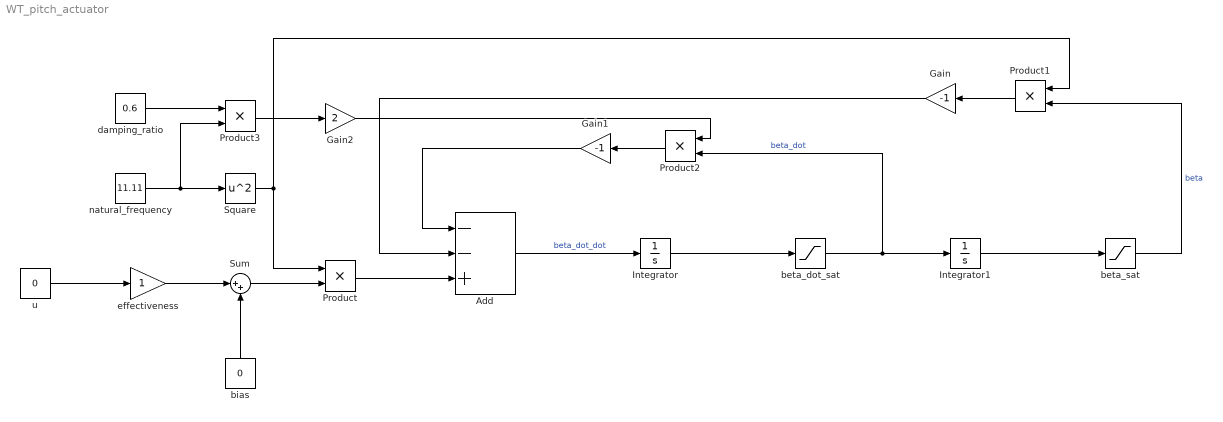
/*
 * WT_pitch_actuator.c
 *
 * Academic License - for use in teaching, academic research, and meeting
 * course requirements at degree granting institutions only.  Not for
 * government, commercial, or other organizational use.
 *
 * Code generation for model "WT_pitch_actuator".
 *
 * Model version              : 1.14
 * Simulink Coder version : 24.1 (R2024a) 19-Nov-2023
 * C source code generated on : Wed Nov 27 16:25:09 2024
 *
 * Target selection: grt.tlc
 * Note: GRT includes extra infrastructure and instrumentation for prototyping
 * Embedded hardware selection: Intel->x86-64 (Windows64)
 * Code generation objectives: Unspecified
 * Validation result: Not run
 */

#include "WT_pitch_actuator.h"
#include "rtwtypes.h"
#include "WT_pitch_actuator_private.h"
#include "rt_logging_mmi.h"
#include "WT_pitch_actuator_capi.h"

/* Block signals (default storage) */
B_WT_pitch_actuator_T WT_pitch_actuator_B;

/* Continuous states */
X_WT_pitch_actuator_T WT_pitch_actuator_X;

/* Disabled State Vector */
XDis_WT_pitch_actuator_T WT_pitch_actuator_XDis;

/* Real-time model */
static RT_MODEL_WT_pitch_actuator_T WT_pitch_actuator_M_;
RT_MODEL_WT_pitch_actuator_T *const WT_pitch_actuator_M = &WT_pitch_actuator_M_;

/*
 * This function updates continuous states using the ODE3 fixed-step
 * solver algorithm
 */
static void rt_ertODEUpdateContinuousStates(RTWSolverInfo *si )
{
  /* Solver Matrices */
  static const real_T rt_ODE3_A[3] = {
    1.0/2.0, 3.0/4.0, 1.0
  };

  static const real_T rt_ODE3_B[3][3] = {
    { 1.0/2.0, 0.0, 0.0 },

    { 0.0, 3.0/4.0, 0.0 },

    { 2.0/9.0, 1.0/3.0, 4.0/9.0 }
  };

  time_T t = rtsiGetT(si);
  time_T tnew = rtsiGetSolverStopTime(si);
  time_T h = rtsiGetStepSize(si);
  real_T *x = rtsiGetContStates(si);
  ODE3_IntgData *id = (ODE3_IntgData *)rtsiGetSolverData(si);
  real_T *y = id->y;
  real_T *f0 = id->f[0];
  real_T *f1 = id->f[1];
  real_T *f2 = id->f[2];
  real_T hB[3];
  int_T i;
  int_T nXc = 2;
  rtsiSetSimTimeStep(si,MINOR_TIME_STEP);

  /* Save the state values at time t in y, we'll use x as ynew. */
  (void) memcpy(y, x,
                (uint_T)nXc*sizeof(real_T));

  /* Assumes that rtsiSetT and ModelOutputs are up-to-date */
  /* f0 = f(t,y) */
  rtsiSetdX(si, f0);
  WT_pitch_actuator_derivatives();

  /* f(:,2) = feval(odefile, t + hA(1), y + f*hB(:,1), args(:)(*)); */
  hB[0] = h * rt_ODE3_B[0][0];
  for (i = 0; i < nXc; i++) {
    x[i] = y[i] + (f0[i]*hB[0]);
  }

  rtsiSetT(si, t + h*rt_ODE3_A[0]);
  rtsiSetdX(si, f1);
  WT_pitch_actuator_step();
  WT_pitch_actuator_derivatives();

  /* f(:,3) = feval(odefile, t + hA(2), y + f*hB(:,2), args(:)(*)); */
  for (i = 0; i <= 1; i++) {
    hB[i] = h * rt_ODE3_B[1][i];
  }

  for (i = 0; i < nXc; i++) {
    x[i] = y[i] + (f0[i]*hB[0] + f1[i]*hB[1]);
  }

  rtsiSetT(si, t + h*rt_ODE3_A[1]);
  rtsiSetdX(si, f2);
  WT_pitch_actuator_step();
  WT_pitch_actuator_derivatives();

  /* tnew = t + hA(3);
     ynew = y + f*hB(:,3); */
  for (i = 0; i <= 2; i++) {
    hB[i] = h * rt_ODE3_B[2][i];
  }

  for (i = 0; i < nXc; i++) {
    x[i] = y[i] + (f0[i]*hB[0] + f1[i]*hB[1] + f2[i]*hB[2]);
  }

  rtsiSetT(si, tnew);
  rtsiSetSimTimeStep(si,MAJOR_TIME_STEP);
}

/* Model step function */
void WT_pitch_actuator_step(void)
{
  real_T tmp;
  if (rtmIsMajorTimeStep(WT_pitch_actuator_M)) {
    /* set solver stop time */
    if (!(WT_pitch_actuator_M->Timing.clockTick0+1)) {
      rtsiSetSolverStopTime(&WT_pitch_actuator_M->solverInfo,
                            ((WT_pitch_actuator_M->Timing.clockTickH0 + 1) *
        WT_pitch_actuator_M->Timing.stepSize0 * 4294967296.0));
    } else {
      rtsiSetSolverStopTime(&WT_pitch_actuator_M->solverInfo,
                            ((WT_pitch_actuator_M->Timing.clockTick0 + 1) *
        WT_pitch_actuator_M->Timing.stepSize0 +
        WT_pitch_actuator_M->Timing.clockTickH0 *
        WT_pitch_actuator_M->Timing.stepSize0 * 4294967296.0));
    }
  }                                    /* end MajorTimeStep */

  /* Update absolute time of base rate at minor time step */
  if (rtmIsMinorTimeStep(WT_pitch_actuator_M)) {
    WT_pitch_actuator_M->Timing.t[0] = rtsiGetT(&WT_pitch_actuator_M->solverInfo);
  }

  if (rtmIsMajorTimeStep(WT_pitch_actuator_M)) {
    /* Gain: '<Root>/Gain2' incorporates:
     *  Constant: '<Root>/damping_ratio'
     *  Constant: '<Root>/natural_frequency'
     *  Product: '<Root>/Product3'
     */
    WT_pitch_actuator_B.Gain2 = WT_pitch_actuator_P.damping_ratio_Value *
      WT_pitch_actuator_P.natural_frequency_Value *
      WT_pitch_actuator_P.Gain2_Gain;

    /* Math: '<Root>/Square' incorporates:
     *  Constant: '<Root>/natural_frequency'
     */
    WT_pitch_actuator_B.Square = WT_pitch_actuator_P.natural_frequency_Value *
      WT_pitch_actuator_P.natural_frequency_Value;

    /* Product: '<Root>/Product' incorporates:
     *  Constant: '<Root>/bias'
     *  Constant: '<Root>/u'
     *  Gain: '<Root>/effectiveness'
     *  Sum: '<Root>/Sum'
     */
    WT_pitch_actuator_B.Product = (WT_pitch_actuator_P.effectiveness_Gain *
      WT_pitch_actuator_P.u_Value + WT_pitch_actuator_P.bias_Value) *
      WT_pitch_actuator_B.Square;
  }

  /* Saturate: '<Root>/beta_dot_sat' incorporates:
   *  Integrator: '<Root>/Integrator'
   */
  if (WT_pitch_actuator_X.Integrator_CSTATE >
      WT_pitch_actuator_P.beta_dot_sat_UpperSat) {
    /* Saturate: '<Root>/beta_dot_sat' */
    WT_pitch_actuator_B.beta_dot = WT_pitch_actuator_P.beta_dot_sat_UpperSat;
  } else if (WT_pitch_actuator_X.Integrator_CSTATE <
             WT_pitch_actuator_P.beta_dot_sat_LowerSat) {
    /* Saturate: '<Root>/beta_dot_sat' */
    WT_pitch_actuator_B.beta_dot = WT_pitch_actuator_P.beta_dot_sat_LowerSat;
  } else {
    /* Saturate: '<Root>/beta_dot_sat' */
    WT_pitch_actuator_B.beta_dot = WT_pitch_actuator_X.Integrator_CSTATE;
  }

  /* End of Saturate: '<Root>/beta_dot_sat' */

  /* Saturate: '<Root>/beta_sat' incorporates:
   *  Integrator: '<Root>/Integrator1'
   */
  if (WT_pitch_actuator_X.Integrator1_CSTATE >
      WT_pitch_actuator_P.beta_sat_UpperSat) {
    tmp = WT_pitch_actuator_P.beta_sat_UpperSat;
  } else if (WT_pitch_actuator_X.Integrator1_CSTATE <
             WT_pitch_actuator_P.beta_sat_LowerSat) {
    tmp = WT_pitch_actuator_P.beta_sat_LowerSat;
  } else {
    tmp = WT_pitch_actuator_X.Integrator1_CSTATE;
  }

  /* Sum: '<Root>/Add' incorporates:
   *  Gain: '<Root>/Gain'
   *  Gain: '<Root>/Gain1'
   *  Product: '<Root>/Product1'
   *  Product: '<Root>/Product2'
   *  Saturate: '<Root>/beta_sat'
   */
  WT_pitch_actuator_B.beta_dot_dot = (WT_pitch_actuator_B.Product -
    WT_pitch_actuator_B.Gain2 * WT_pitch_actuator_B.beta_dot *
    WT_pitch_actuator_P.Gain1_Gain) - WT_pitch_actuator_B.Square * tmp *
    WT_pitch_actuator_P.Gain_Gain;
  if (rtmIsMajorTimeStep(WT_pitch_actuator_M)) {
    /* Matfile logging */
    rt_UpdateTXYLogVars(WT_pitch_actuator_M->rtwLogInfo,
                        (WT_pitch_actuator_M->Timing.t));
  }                                    /* end MajorTimeStep */

  if (rtmIsMajorTimeStep(WT_pitch_actuator_M)) {
    /* signal main to stop simulation */
    {                                  /* Sample time: [0.0s, 0.0s] */
      if ((rtmGetTFinal(WT_pitch_actuator_M)!=-1) &&
          !((rtmGetTFinal(WT_pitch_actuator_M)-
             (((WT_pitch_actuator_M->Timing.clockTick1+
                WT_pitch_actuator_M->Timing.clockTickH1* 4294967296.0)) * 0.001))
            > (((WT_pitch_actuator_M->Timing.clockTick1+
                 WT_pitch_actuator_M->Timing.clockTickH1* 4294967296.0)) * 0.001)
            * (DBL_EPSILON))) {
        rtmSetErrorStatus(WT_pitch_actuator_M, "Simulation finished");
      }
    }

    rt_ertODEUpdateContinuousStates(&WT_pitch_actuator_M->solverInfo);

    /* Update absolute time for base rate */
    /* The "clockTick0" counts the number of times the code of this task has
     * been executed. The absolute time is the multiplication of "clockTick0"
     * and "Timing.stepSize0". Size of "clockTick0" ensures timer will not
     * overflow during the application lifespan selected.
     * Timer of this task consists of two 32 bit unsigned integers.
     * The two integers represent the low bits Timing.clockTick0 and the high bits
     * Timing.clockTickH0. When the low bit overflows to 0, the high bits increment.
     */
    if (!(++WT_pitch_actuator_M->Timing.clockTick0)) {
      ++WT_pitch_actuator_M->Timing.clockTickH0;
    }

    WT_pitch_actuator_M->Timing.t[0] = rtsiGetSolverStopTime
      (&WT_pitch_actuator_M->solverInfo);

    {
      /* Update absolute timer for sample time: [0.001s, 0.0s] */
      /* The "clockTick1" counts the number of times the code of this task has
       * been executed. The resolution of this integer timer is 0.001, which is the step size
       * of the task. Size of "clockTick1" ensures timer will not overflow during the
       * application lifespan selected.
       * Timer of this task consists of two 32 bit unsigned integers.
       * The two integers represent the low bits Timing.clockTick1 and the high bits
       * Timing.clockTickH1. When the low bit overflows to 0, the high bits increment.
       */
      WT_pitch_actuator_M->Timing.clockTick1++;
      if (!WT_pitch_actuator_M->Timing.clockTick1) {
        WT_pitch_actuator_M->Timing.clockTickH1++;
      }
    }
  }                                    /* end MajorTimeStep */
}
